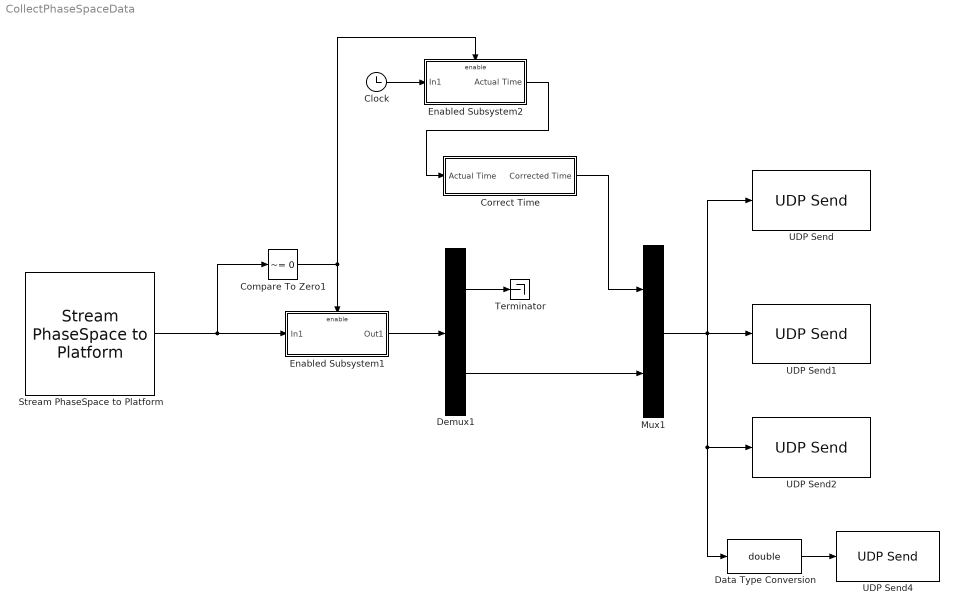
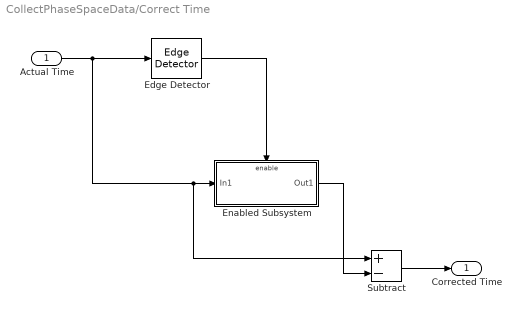
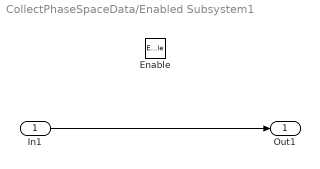
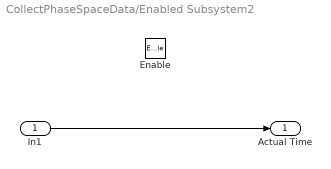
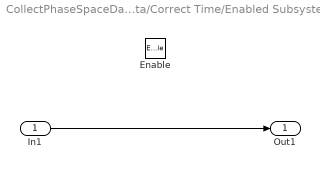
//
// Academic License - for use in teaching, academic research, and meeting
// course requirements at degree granting institutions only.  Not for
// government, commercial, or other organizational use.
//
// File: CollectPhaseSpaceData.cpp
//
// Code generated for Simulink model 'CollectPhaseSpaceData'.
//
// Model version                  : 1.49
// Simulink Coder version         : 9.3 (R2020a) 18-Nov-2019
// C/C++ source code generated on : Fri Nov 11 17:01:11 2022
//
// Target selection: ert.tlc
// Embedded hardware selection: ARM Compatible->ARM Cortex
// Emulation hardware selection:
//    Differs from embedded hardware (MATLAB Host)
// Code generation objective: Execution efficiency
// Validation result: Not run
//
#include "CollectPhaseSpaceData.h"
#include "CollectPhaseSpaceData_private.h"

// Block signals (default storage)
B_CollectPhaseSpaceData_T CollectPhaseSpaceData_B;

// Block states (default storage)
DW_CollectPhaseSpaceData_T CollectPhaseSpaceData_DW;

// Real-time model
RT_MODEL_CollectPhaseSpaceDat_T CollectPhaseSpaceData_M_ =
  RT_MODEL_CollectPhaseSpaceDat_T();
RT_MODEL_CollectPhaseSpaceDat_T *const CollectPhaseSpaceData_M =
  &CollectPhaseSpaceData_M_;

// Forward declaration for local functions
static void CollectPhase_SystemCore_release(const
  PhaseSpace_ALL_CollectPhaseSp_T *obj);
static void CollectPhaseS_SystemCore_delete(const
  PhaseSpace_ALL_CollectPhaseSp_T *obj);
static void matlabCodegenHandle_matlabCodeg(PhaseSpace_ALL_CollectPhaseSp_T *obj);
static void CollectPhase_SystemCore_release(const
  PhaseSpace_ALL_CollectPhaseSp_T *obj)
{
  if ((obj->isInitialized == 1) && obj->isSetupComplete) {
    terminate_phasespace();
  }
}

static void CollectPhaseS_SystemCore_delete(const
  PhaseSpace_ALL_CollectPhaseSp_T *obj)
{
  CollectPhase_SystemCore_release(obj);
}

static void matlabCodegenHandle_matlabCodeg(PhaseSpace_ALL_CollectPhaseSp_T *obj)
{
  if (!obj->matlabCodegenIsDeleted) {
    obj->matlabCodegenIsDeleted = true;
    CollectPhaseS_SystemCore_delete(obj);
  }
}

// Model step function
void CollectPhaseSpaceData_step(void)
{
  {
    real_T y9;
    real_T y10;
    real_T y11;
    real_T y12;
    real_T y13;
    real_T y14;
    real_T y15;
    int32_T i;

    // MATLABSystem: '<Root>/Stream PhaseSpace to Platform'
    if (CollectPhaseSpaceData_DW.obj.PS_SampleRate !=
        CollectPhaseSpaceData_P.StreamPhaseSpacetoPlatform_PS_S) {
      CollectPhaseSpaceData_DW.obj.PS_SampleRate =
        CollectPhaseSpaceData_P.StreamPhaseSpacetoPlatform_PS_S;
    }

    CollectPhaseSpaceData_B.b_y1 = 0.0;
    CollectPhaseSpaceData_B.y2 = 0.0;
    CollectPhaseSpaceData_B.StreamPhaseSpacetoPlatform[3] = 0.0;
    CollectPhaseSpaceData_B.y4 = 0.0;
    CollectPhaseSpaceData_B.y5 = 0.0;
    CollectPhaseSpaceData_B.StreamPhaseSpacetoPlatform[6] = 0.0;
    CollectPhaseSpaceData_B.y7 = 0.0;
    CollectPhaseSpaceData_B.y8 = 0.0;
    y9 = 0.0;
    y10 = 0.0;
    y11 = 0.0;
    y12 = 0.0;
    y13 = 0.0;
    y14 = 0.0;
    y15 = 0.0;
    CollectPhaseSpaceData_B.StreamPhaseSpacetoPlatform[15] = 0.0;
    stream_phasespace(&CollectPhaseSpaceData_B.b_y1, &CollectPhaseSpaceData_B.y2,
                      &CollectPhaseSpaceData_B.StreamPhaseSpacetoPlatform[3],
                      &CollectPhaseSpaceData_B.y4, &CollectPhaseSpaceData_B.y5,
                      &CollectPhaseSpaceData_B.StreamPhaseSpacetoPlatform[6],
                      &CollectPhaseSpaceData_B.y7, &CollectPhaseSpaceData_B.y8,
                      &y9, &y10, &y11, &y12, &y13, &y14, &y15,
                      &CollectPhaseSpaceData_B.StreamPhaseSpacetoPlatform[15]);
    CollectPhaseSpaceData_B.StreamPhaseSpacetoPlatform[0] =
      CollectPhaseSpaceData_B.y7 / CollectPhaseSpaceData_DW.obj.PS_SampleRate;
    CollectPhaseSpaceData_B.StreamPhaseSpacetoPlatform[1] =
      CollectPhaseSpaceData_B.b_y1 / 1000.0;
    CollectPhaseSpaceData_B.StreamPhaseSpacetoPlatform[2] =
      CollectPhaseSpaceData_B.y2 / 1000.0;
    CollectPhaseSpaceData_B.StreamPhaseSpacetoPlatform[4] =
      CollectPhaseSpaceData_B.y4 / 1000.0;
    CollectPhaseSpaceData_B.StreamPhaseSpacetoPlatform[5] =
      CollectPhaseSpaceData_B.y5 / 1000.0;
    CollectPhaseSpaceData_B.StreamPhaseSpacetoPlatform[7] =
      CollectPhaseSpaceData_B.y8 / 1000.0;
    CollectPhaseSpaceData_B.StreamPhaseSpacetoPlatform[8] = y9 / 1000.0;
    CollectPhaseSpaceData_B.StreamPhaseSpacetoPlatform[9] = y10 / 1000.0;
    CollectPhaseSpaceData_B.StreamPhaseSpacetoPlatform[10] = y11 / 1000.0;
    CollectPhaseSpaceData_B.StreamPhaseSpacetoPlatform[11] = y12 / 1000.0;
    CollectPhaseSpaceData_B.StreamPhaseSpacetoPlatform[12] = y13 / 1000.0;
    CollectPhaseSpaceData_B.StreamPhaseSpacetoPlatform[13] = y14 / 1000.0;
    CollectPhaseSpaceData_B.StreamPhaseSpacetoPlatform[14] = y15 / 1000.0;

    // End of MATLABSystem: '<Root>/Stream PhaseSpace to Platform'

    // RelationalOperator: '<S1>/Compare' incorporates:
    //   Constant: '<S1>/Constant'

    for (i = 0; i < 16; i++) {
      CollectPhaseSpaceData_B.rtb_Compare_m[i] =
        (CollectPhaseSpaceData_B.StreamPhaseSpacetoPlatform[i] !=
         CollectPhaseSpaceData_P.Constant_Value);
    }

    // End of RelationalOperator: '<S1>/Compare'

    // Outputs for Enabled SubSystem: '<Root>/Enabled Subsystem1' incorporates:
    //   EnablePort: '<S3>/Enable'

    // Outputs for Enabled SubSystem: '<Root>/Enabled Subsystem2' incorporates:
    //   EnablePort: '<S4>/Enable'

    if (CollectPhaseSpaceData_B.rtb_Compare_m[0] ||
        CollectPhaseSpaceData_B.rtb_Compare_m[1] ||
        CollectPhaseSpaceData_B.rtb_Compare_m[2] ||
        CollectPhaseSpaceData_B.rtb_Compare_m[3] ||
        CollectPhaseSpaceData_B.rtb_Compare_m[4] ||
        CollectPhaseSpaceData_B.rtb_Compare_m[5] ||
        CollectPhaseSpaceData_B.rtb_Compare_m[6] ||
        CollectPhaseSpaceData_B.rtb_Compare_m[7] ||
        CollectPhaseSpaceData_B.rtb_Compare_m[8] ||
        CollectPhaseSpaceData_B.rtb_Compare_m[9] ||
        CollectPhaseSpaceData_B.rtb_Compare_m[10] ||
        CollectPhaseSpaceData_B.rtb_Compare_m[11] ||
        CollectPhaseSpaceData_B.rtb_Compare_m[12] ||
        CollectPhaseSpaceData_B.rtb_Compare_m[13] ||
        CollectPhaseSpaceData_B.rtb_Compare_m[14] ||
        CollectPhaseSpaceData_B.rtb_Compare_m[15]) {
      // Inport: '<S4>/In1' incorporates:
      //   Clock: '<Root>/Clock'

      CollectPhaseSpaceData_B.In1 = CollectPhaseSpaceData_M->Timing.t[0];

      // Inport: '<S3>/In1'
      std::memcpy(&CollectPhaseSpaceData_B.In1_b[0],
                  &CollectPhaseSpaceData_B.StreamPhaseSpacetoPlatform[0], sizeof
                  (real_T) << 4U);
    }

    // End of Outputs for SubSystem: '<Root>/Enabled Subsystem2'
    // End of Outputs for SubSystem: '<Root>/Enabled Subsystem1'

    // DataTypeConversion: '<S5>/Data Type Conversion'
    CollectPhaseSpaceData_B.DataTypeConversion = (CollectPhaseSpaceData_B.In1 !=
      0.0);

    // Outputs for Enabled SubSystem: '<S2>/Enabled Subsystem' incorporates:
    //   EnablePort: '<S6>/Enable'

    // Logic: '<S5>/Logical Operator1' incorporates:
    //   Delay: '<S5>/Delay'
    //   Inport: '<S6>/In1'
    //   Logic: '<S5>/Logical Operator'

    if (CollectPhaseSpaceData_B.DataTypeConversion &&
        (!CollectPhaseSpaceData_DW.Delay_DSTATE)) {
      CollectPhaseSpaceData_B.In1_bn = CollectPhaseSpaceData_B.In1;
    }

    // End of Logic: '<S5>/Logical Operator1'
    // End of Outputs for SubSystem: '<S2>/Enabled Subsystem'

    // SignalConversion generated from: '<Root>/UDP Send' incorporates:
    //   Sum: '<S2>/Subtract'

    CollectPhaseSpaceData_B.TmpSignalConversionAtUDPSendInp[0] =
      CollectPhaseSpaceData_B.In1 - CollectPhaseSpaceData_B.In1_bn;
    std::memcpy(&CollectPhaseSpaceData_B.TmpSignalConversionAtUDPSendInp[1],
                &CollectPhaseSpaceData_B.In1_b[1], 15U * sizeof(real_T));
  }

  {
    char_T *sErr;

    // Update for Delay: '<S5>/Delay'
    CollectPhaseSpaceData_DW.Delay_DSTATE =
      CollectPhaseSpaceData_B.DataTypeConversion;

    // Update for S-Function (sdspToNetwork): '<Root>/UDP Send'
    sErr = GetErrorBuffer(&CollectPhaseSpaceData_DW.UDPSend_NetworkLib[0U]);
    LibUpdate_Network(&CollectPhaseSpaceData_DW.UDPSend_NetworkLib[0U],
                      &CollectPhaseSpaceData_B.TmpSignalConversionAtUDPSendInp
                      [0U], 16);
    if (*sErr != 0) {
      rtmSetErrorStatus(CollectPhaseSpaceData_M, sErr);
      rtmSetStopRequested(CollectPhaseSpaceData_M, 1);
    }

    // End of Update for S-Function (sdspToNetwork): '<Root>/UDP Send'

    // Update for S-Function (sdspToNetwork): '<Root>/UDP Send1'
    sErr = GetErrorBuffer(&CollectPhaseSpaceData_DW.UDPSend1_NetworkLib[0U]);
    LibUpdate_Network(&CollectPhaseSpaceData_DW.UDPSend1_NetworkLib[0U],
                      &CollectPhaseSpaceData_B.TmpSignalConversionAtUDPSendInp
                      [0U], 16);
    if (*sErr != 0) {
      rtmSetErrorStatus(CollectPhaseSpaceData_M, sErr);
      rtmSetStopRequested(CollectPhaseSpaceData_M, 1);
    }

    // End of Update for S-Function (sdspToNetwork): '<Root>/UDP Send1'

    // Update for S-Function (sdspToNetwork): '<Root>/UDP Send2'
    sErr = GetErrorBuffer(&CollectPhaseSpaceData_DW.UDPSend2_NetworkLib[0U]);
    LibUpdate_Network(&CollectPhaseSpaceData_DW.UDPSend2_NetworkLib[0U],
                      &CollectPhaseSpaceData_B.TmpSignalConversionAtUDPSendInp
                      [0U], 16);
    if (*sErr != 0) {
      rtmSetErrorStatus(CollectPhaseSpaceData_M, sErr);
      rtmSetStopRequested(CollectPhaseSpaceData_M, 1);
    }

    // End of Update for S-Function (sdspToNetwork): '<Root>/UDP Send2'

    // Update for S-Function (sdspToNetwork): '<Root>/UDP Send4'
    sErr = GetErrorBuffer(&CollectPhaseSpaceData_DW.UDPSend4_NetworkLib[0U]);
    LibUpdate_Network(&CollectPhaseSpaceData_DW.UDPSend4_NetworkLib[0U],
                      &CollectPhaseSpaceData_B.TmpSignalConversionAtUDPSendInp
                      [0U], 16);
    if (*sErr != 0) {
      rtmSetErrorStatus(CollectPhaseSpaceData_M, sErr);
      rtmSetStopRequested(CollectPhaseSpaceData_M, 1);
    }

    // End of Update for S-Function (sdspToNetwork): '<Root>/UDP Send4'
  }

  // Update absolute time for base rate
  // The "clockTick0" counts the number of times the code of this task has
  //  been executed. The absolute time is the multiplication of "clockTick0"
  //  and "Timing.stepSize0". Size of "clockTick0" ensures timer will not
  //  overflow during the application lifespan selected.

  CollectPhaseSpaceData_M->Timing.t[0] =
    ((time_T)(++CollectPhaseSpaceData_M->Timing.clockTick0)) *
    CollectPhaseSpaceData_M->Timing.stepSize0;

  {
    // Update absolute timer for sample time: [0.1s, 0.0s]
    // The "clockTick1" counts the number of times the code of this task has
    //  been executed. The resolution of this integer timer is 0.1, which is the step size
    //  of the task. Size of "clockTick1" ensures timer will not overflow during the
    //  application lifespan selected.

    CollectPhaseSpaceData_M->Timing.clockTick1++;
  }
}
